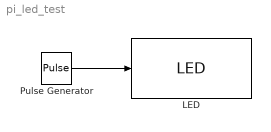
/*
 * pi_led_test.c
 *
 * Academic License - for use in teaching, academic research, and meeting
 * course requirements at degree granting institutions only.  Not for
 * government, commercial, or other organizational use.
 *
 * Code generation for model "pi_led_test".
 *
 * Model version              : 1.2
 * Simulink Coder version : 9.5 (R2021a) 14-Nov-2020
 * C source code generated on : Thu Nov  9 16:16:13 2023
 *
 * Target selection: ert.tlc
 * Note: GRT includes extra infrastructure and instrumentation for prototyping
 * Embedded hardware selection: ARM Compatible->ARM Cortex
 * Code generation objectives: Unspecified
 * Validation result: Not run
 */

#include "pi_led_test.h"
#include "pi_led_test_private.h"

/* Block signals (default storage) */
B_pi_led_test_T pi_led_test_B;

/* Block states (default storage) */
DW_pi_led_test_T pi_led_test_DW;

/* Real-time model */
static RT_MODEL_pi_led_test_T pi_led_test_M_;
RT_MODEL_pi_led_test_T *const pi_led_test_M = &pi_led_test_M_;
real_T rt_roundd_snf(real_T u)
{
  real_T y;
  if (fabs(u) < 4.503599627370496E+15) {
    if (u >= 0.5) {
      y = floor(u + 0.5);
    } else if (u > -0.5) {
      y = u * 0.0;
    } else {
      y = ceil(u - 0.5);
    }
  } else {
    y = u;
  }

  return y;
}

/* Model step function */
void pi_led_test_step(void)
{
  real_T rtb_PulseGenerator;
  int32_T i;
  char_T d[5];
  uint8_T tmp;
  static const char_T tmp_0[69] = { 'I', 'n', 'v', 'a', 'l', 'i', 'd', ' ', 'L',
    'E', 'D', ' ', 'v', 'a', 'l', 'u', 'e', '.', ' ', 'L', 'E', 'D', ' ', 'v',
    'a', 'l', 'u', 'e', ' ', 'm', 'u', 's', 't', ' ', 'b', 'e', ' ', 'a', ' ',
    'l', 'o', 'g', 'i', 'c', 'a', 'l', ' ', 'v', 'a', 'l', 'u', 'e', ' ', '(',
    't', 'r', 'u', 'e', ' ', 'o', 'r', ' ', 'f', 'a', 'l', 's', 'e', ')', '.' };

  static const char_T tmp_1[5] = "none";

  /* DiscretePulseGenerator: '<Root>/Pulse Generator' */
  rtb_PulseGenerator = (pi_led_test_DW.clockTickCounter <
                        pi_led_test_P.PulseGenerator_Duty) &&
    (pi_led_test_DW.clockTickCounter >= 0) ? pi_led_test_P.PulseGenerator_Amp :
    0.0;
  if (pi_led_test_DW.clockTickCounter >= pi_led_test_P.PulseGenerator_Period -
      1.0) {
    pi_led_test_DW.clockTickCounter = 0;
  } else {
    pi_led_test_DW.clockTickCounter++;
  }

  /* End of DiscretePulseGenerator: '<Root>/Pulse Generator' */

  /* MATLABSystem: '<Root>/LED' */
  if ((rtb_PulseGenerator == 0.0) || (rtb_PulseGenerator == 1.0)) {
  } else {
    memcpy(&pi_led_test_B.c[0], &tmp_0[0], 69U * sizeof(char_T));
    perror(&pi_led_test_B.c[0]);
  }

  for (i = 0; i < 5; i++) {
    d[i] = tmp_1[i];
  }

  EXT_LED_setTrigger(0U, &d[0]);
  rtb_PulseGenerator = rt_roundd_snf(rtb_PulseGenerator);
  if (rtb_PulseGenerator < 256.0) {
    if (rtb_PulseGenerator >= 0.0) {
      tmp = (uint8_T)rtb_PulseGenerator;
    } else {
      tmp = 0U;
    }
  } else {
    tmp = MAX_uint8_T;
  }

  EXT_LED_write(0U, tmp);

  /* End of MATLABSystem: '<Root>/LED' */
}
